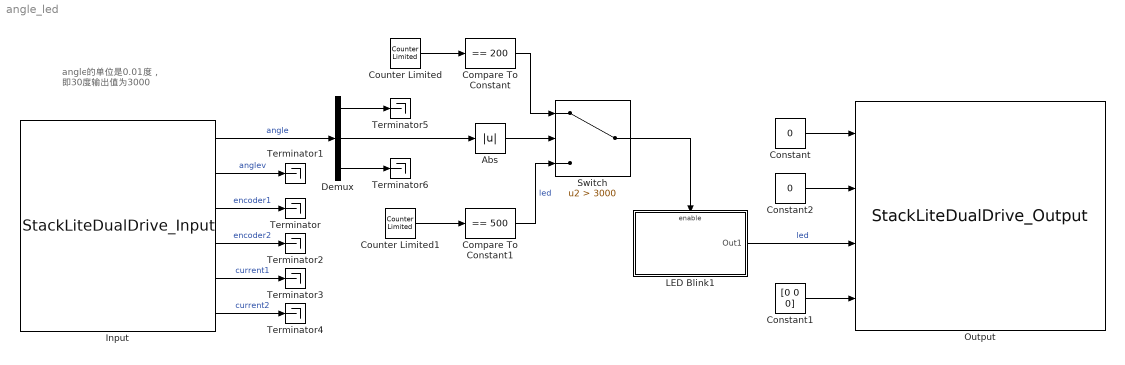
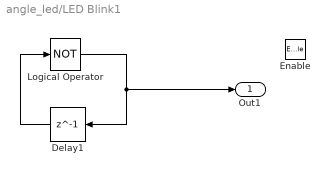
/*
 * File: angle_led.c
 *
 * Code generated for Simulink model 'angle_led'.
 *
 * Model version                  : 1.0
 * Simulink Coder version         : 9.6 (R2021b) 14-May-2021
 * C/C++ source code generated on : Sat Oct 29 21:45:31 2022
 *
 * Target selection: stacklite_dualdrive.tlc
 * Embedded hardware selection: Intel->x86-64 (Windows64)
 * Code generation objectives: Unspecified
 * Validation result: Not run
 */

#include "main.h"
#include "tim.h"
#include "gpio.h"
#include "stdio.h"
#include <string.h>
#include "angle_led.h"
#include "angle_led_private.h"

/* Block signals (default storage) */
B_angle_led_T angle_led_B;

/* Block states (default storage) */
DW_angle_led_T angle_led_DW;

/* Real-time model */
static RT_MODEL_angle_led_T angle_led_M_;
RT_MODEL_angle_led_T *const angle_led_M = &angle_led_M_;
extern int16_t HI226_Angle[3];
extern int16_t HI226_AngleV[3];
extern int16_t adc_rawvalue[2][5];
extern int16_t motor1_PwmData;
extern int16_t motor2_PwmData;
extern uint8_t led_data;
extern uint8_t ws2812_data[3];

/* Model step function */
void angle_led_step(void)
{
  int16_T tmp_0;
  boolean_T tmp;

  /* S-Function (StackLiteDualDrive_Input): '<Root>/Input' */
  /*Input Data*/
  memcpy(&angle_led_B.angle[0],HI226_Angle,3*2);
  memcpy(&angle_led_B.anglev[0],HI226_AngleV,3*2);
  angle_led_B.encoder1= (int32_t)(__HAL_TIM_GetCounter(&htim2));
  angle_led_B.encoder2= -(int32_t)(__HAL_TIM_GetCounter(&htim5));
  memcpy(&angle_led_B.current1[0],adc_rawvalue[0],5*2);
  memcpy(&angle_led_B.current2[0],adc_rawvalue[1],5*2);

  /* Abs: '<Root>/Abs' */
  if (angle_led_B.angle[1] < 0) {
    tmp_0 = (int16_T)-angle_led_B.angle[1];
  } else {
    tmp_0 = angle_led_B.angle[1];
  }

  /* End of Abs: '<Root>/Abs' */

  /* Switch: '<Root>/Switch' incorporates:
   *  Constant: '<S1>/Constant'
   *  Constant: '<S2>/Constant'
   *  RelationalOperator: '<S1>/Compare'
   *  RelationalOperator: '<S2>/Compare'
   *  UnitDelay: '<S3>/Output'
   *  UnitDelay: '<S4>/Output'
   */
  if (tmp_0 > 3000) {
    tmp = (angle_led_DW.Output_DSTATE_a == 200);
  } else {
    tmp = (angle_led_DW.Output_DSTATE == 500);
  }

  /* End of Switch: '<Root>/Switch' */

  /* Outputs for Enabled SubSystem: '<Root>/LED Blink1' incorporates:
   *  EnablePort: '<S5>/Enable'
   */
  if (tmp) {
    /* Logic: '<S5>/Logical Operator' incorporates:
     *  Delay: '<S5>/Delay1'
     */
    angle_led_B.LogicalOperator = (uint8_T)(angle_led_DW.Delay1_DSTATE == 0);

    /* Update for Delay: '<S5>/Delay1' */
    angle_led_DW.Delay1_DSTATE = angle_led_B.LogicalOperator;
  }

  /* End of Outputs for SubSystem: '<Root>/LED Blink1' */

  /* Switch: '<S9>/FixPt Switch' incorporates:
   *  Constant: '<S8>/FixPt Constant'
   *  Constant: '<S9>/Constant'
   *  Sum: '<S8>/FixPt Sum1'
   *  UnitDelay: '<S4>/Output'
   */
  if ((uint16_T)(angle_led_DW.Output_DSTATE + 1) > 500) {
    angle_led_DW.Output_DSTATE = 0U;
  } else {
    angle_led_DW.Output_DSTATE++;
  }

  /* End of Switch: '<S9>/FixPt Switch' */

  /* Switch: '<S7>/FixPt Switch' incorporates:
   *  Constant: '<S6>/FixPt Constant'
   *  Constant: '<S7>/Constant'
   *  Sum: '<S6>/FixPt Sum1'
   *  UnitDelay: '<S3>/Output'
   */
  if ((uint8_T)(angle_led_DW.Output_DSTATE_a + 1) > 200) {
    angle_led_DW.Output_DSTATE_a = 0U;
  } else {
    angle_led_DW.Output_DSTATE_a++;
  }

  /* End of Switch: '<S7>/FixPt Switch' */

  /* S-Function (StackLiteDualDrive_Output): '<Root>/Output' incorporates:
   *  Constant: '<Root>/Constant'
   *  Constant: '<Root>/Constant1'
   *  Constant: '<Root>/Constant2'
   */
  /*Output Data*/
  motor1_PwmData= 0;
  motor2_PwmData= 0;
  HAL_GPIO_WritePin(USER_LED_GPIO_Port,USER_LED_Pin,(GPIO_PinState)
                    angle_led_B.LogicalOperator);
  memcpy(ws2812_data,angle_led_ConstP.Constant1_Value,3);
}
